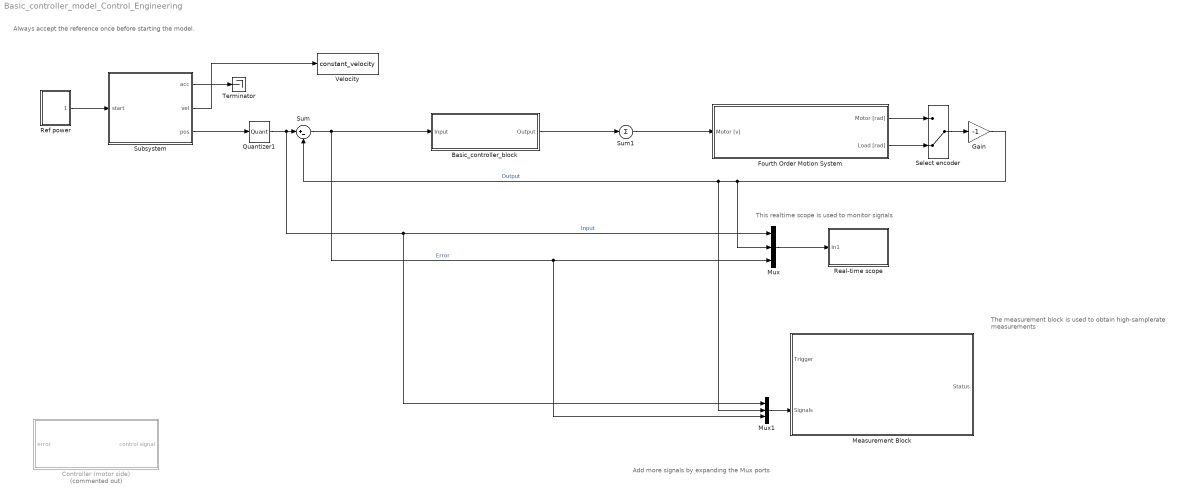
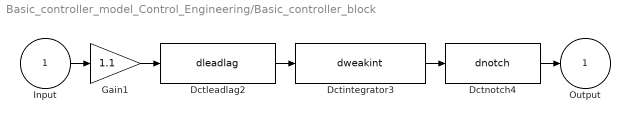
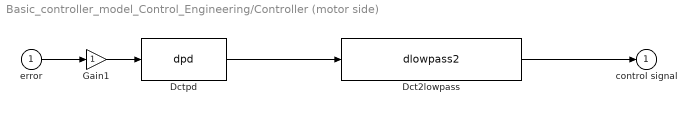
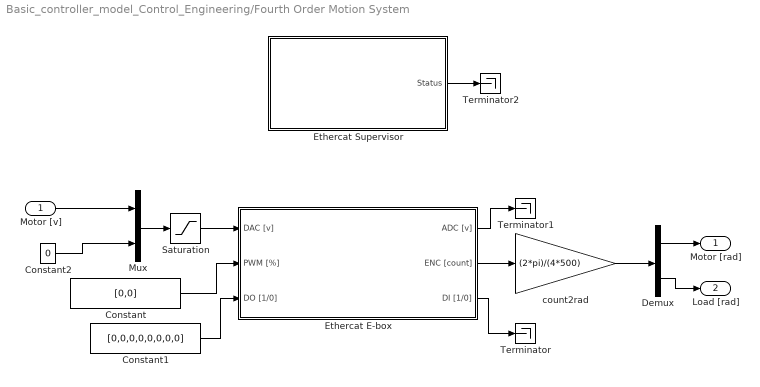
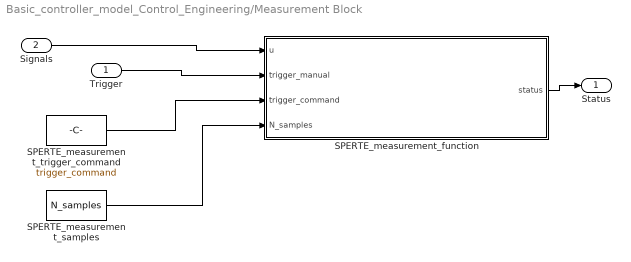
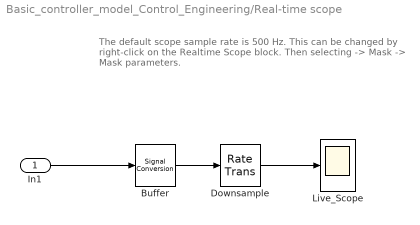
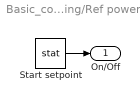
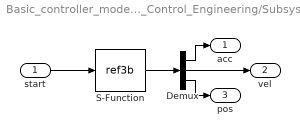
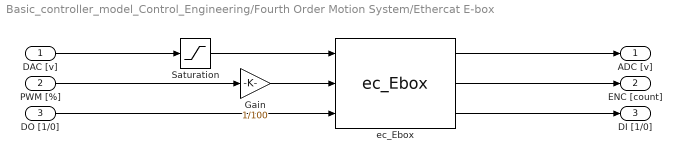
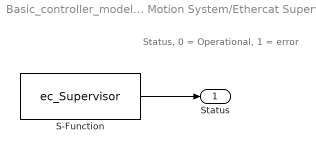
== matlab function Basic_controller_model_Control_Engineering/Measurement Block/SPERTE_measurement_function ==
function status = perform_measurement(u, trigger_manual, trigger_command, triggertype, N_samples)

%% Persistent variables
persistent fileID NF busy NS

% Init parameters
if isempty(NF)
    NF = int16(0);
end
if isempty(NS)
    NS = uint32(0);
end
if isempty(fileID)
    fileID = 0;
end
if isempty(busy)
    busy = uint8(0);
end

%% Check the triggers
if ( (triggertype == 0 && trigger_manual == 1) || (triggertype == 1 && trigger_command == 1) || (triggertype == 2 && (trigger_command == 1 || trigger_manual == 1) ) )
    if busy == 1
        % We are already busy, nothing to do
    else
        % We should start a new one
        fileID = fopen(sprintf('measurement_%d.bin',NF),'w');  
        NF = NF + 1;
        busy = uint8(1);
        NS = uint32(0);
    end
end

% We have started a measurement
if busy == 1
    if NS < N_samples 
        % Here we write the sample, in single precision float
        fwrite(fileID,u,'single');
        NS = NS + uint32(1);
    else
       % We have N samples already, we are done
       fclose(fileID);
       busy = uint8(0);
       NS = uint32(0);
    end
      
end
    % Output state
    status = uint8(busy);
end

/*
 * Basic_controller_model_Control_Engineering.c
 *
 * Academic License - for use in teaching, academic research, and meeting
 * course requirements at degree granting institutions only.  Not for
 * government, commercial, or other organizational use.
 *
 * Code generation for model "Basic_controller_model_Control_Engineering".
 *
 * Model version              : 11.26
 * Simulink Coder version : 23.2 (R2023b) 01-Aug-2023
 * C source code generated on : Tue Apr  2 14:28:56 2024
 *
 * Target selection: ert.tlc
 * Note: GRT includes extra infrastructure and instrumentation for prototyping
 * Embedded hardware selection: ARM Compatible->ARM Cortex
 * Code generation objectives: Unspecified
 * Validation result: Not run
 */

#include "Basic_controller_model_Control_Engineering.h"
#include "Basic_controller_model_Control_Engineering_types.h"
#include "rtwtypes.h"
#include <string.h>
#include <stddef.h>
#include "Basic_controller_model_Control_Engineering_private.h"
#include <stdio.h>
#include <stdlib.h>
#include "rt_nonfinite.h"
#include <math.h>
#include "Basic_controller_model_Control_Engineering_dt.h"

/* Named constants for MATLAB Function: '<S3>/SPERTE_measurement_function' */
#define Basic_controller_mod_CALL_EVENT (-1)

/* Block signals (default storage) */
B_Basic_controller_model_Control_Engineering_T
  Basic_controller_model_Control_Engineering_B;

/* Block states (default storage) */
DW_Basic_controller_model_Control_Engineering_T
  Basic_controller_model_Control_Engineering_DW;

/* Real-time model */
static RT_MODEL_Basic_controller_model_Control_Engineering_T
  Basic_controller_model_Control_Engineering_M_;
RT_MODEL_Basic_controller_model_Control_Engineering_T *const
  Basic_controller_model_Control_Engineering_M =
  &Basic_controller_model_Control_Engineering_M_;

/* Forward declaration for local functions */
static void Basic_controller_emxInit_char_T(emxArray_char_T_Basic_control_T
  **pEmxArray, int32_T numDimensions);
static void Basic__emxEnsureCapacity_char_T(emxArray_char_T_Basic_control_T
  *emxArray, int32_T oldNumel);
static void Basic_controller_emxFree_char_T(emxArray_char_T_Basic_control_T
  **pEmxArray);
static int8_T Basic_controller_model_filedata(void);
static int8_T Basic_controller_model_C_cfopen(const
  emxArray_char_T_Basic_control_T *cfilename, const char_T *cpermission);
static int32_T Basic_controller_model__cfclose(real_T fid);
static void rate_monotonic_scheduler(void);

/*
 * Set which subrates need to run this base step (base rate always runs).
 * This function must be called prior to calling the model step function
 * in order to remember which rates need to run this base step.  The
 * buffering of events allows for overlapping preemption.
 */
void Basic_controller_model_Control_Engineering_SetEventsForThisBaseStep
  (boolean_T *eventFlags)
{
  /* Task runs when its counter is zero, computed via rtmStepTask macro */
  eventFlags[2] = ((boolean_T)rtmStepTask
                   (Basic_controller_model_Control_Engineering_M, 2));
}

/*
 *         This function updates active task flag for each subrate
 *         and rate transition flags for tasks that exchange data.
 *         The function assumes rate-monotonic multitasking scheduler.
 *         The function must be called at model base rate so that
 *         the generated code self-manages all its subrates and rate
 *         transition flags.
 */
static void rate_monotonic_scheduler(void)
{
  /* To ensure a deterministic data transfer between two rates,
   * data is transferred at the priority of a fast task and the frequency
   * of the slow task.  The following flags indicate when the data transfer
   * happens.  That is, a rate interaction flag is set true when both rates
   * will run, and false otherwise.
   */

  /* tid 1 shares data with slower tid rate: 2 */
  if (Basic_controller_model_Control_Engineering_M->Timing.TaskCounters.TID[1] ==
      0) {
    Basic_controller_model_Control_Engineering_M->Timing.RateInteraction.TID1_2 =
      (Basic_controller_model_Control_Engineering_M->Timing.TaskCounters.TID[2] ==
       0);

    /* update PerTaskSampleHits matrix for non-inline sfcn */
    Basic_controller_model_Control_Engineering_M->Timing.perTaskSampleHits[5] =
      Basic_controller_model_Control_Engineering_M->Timing.RateInteraction.TID1_2;
  }

  /* Compute which subrates run during the next base time step.  Subrates
   * are an integer multiple of the base rate counter.  Therefore, the subtask
   * counter is reset when it reaches its limit (zero means run).
   */
  (Basic_controller_model_Control_Engineering_M->Timing.TaskCounters.TID[2])++;
  if ((Basic_controller_model_Control_Engineering_M->Timing.TaskCounters.TID[2])
      > 7) {                           /* Sample time: [0.002s, 0.0s] */
    Basic_controller_model_Control_Engineering_M->Timing.TaskCounters.TID[2] = 0;
  }
}

real_T rt_roundd_snf(real_T u)
{
  real_T y;
  if (fabs(u) < 4.503599627370496E+15) {
    if (u >= 0.5) {
      y = floor(u + 0.5);
    } else if (u > -0.5) {
      y = u * 0.0;
    } else {
      y = ceil(u - 0.5);
    }
  } else {
    y = u;
  }

  return y;
}

static void Basic_controller_emxInit_char_T(emxArray_char_T_Basic_control_T
  **pEmxArray, int32_T numDimensions)
{
  emxArray_char_T_Basic_control_T *emxArray;
  int32_T i;
  *pEmxArray = (emxArray_char_T_Basic_control_T *)malloc(sizeof
    (emxArray_char_T_Basic_control_T));
  emxArray = *pEmxArray;
  emxArray->data = (char_T *)NULL;
  emxArray->numDimensions = numDimensions;
  emxArray->size = (int32_T *)malloc(sizeof(int32_T) * (uint32_T)numDimensions);
  emxArray->allocatedSize = 0;
  emxArray->canFreeData = true;
  for (i = 0; i < numDimensions; i++) {
    emxArray->size[i] = 0;
  }
}

static void Basic__emxEnsureCapacity_char_T(emxArray_char_T_Basic_control_T
  *emxArray, int32_T oldNumel)
{
  int32_T i;
  int32_T newNumel;
  void *newData;
  if (oldNumel < 0) {
    oldNumel = 0;
  }

  newNumel = 1;
  for (i = 0; i < emxArray->numDimensions; i++) {
    newNumel *= emxArray->size[i];
  }

  if (newNumel > emxArray->allocatedSize) {
    i = emxArray->allocatedSize;
    if (i < 16) {
      i = 16;
    }

    while (i < newNumel) {
      if (i > 1073741823) {
        i = MAX_int32_T;
      } else {
        i <<= 1;
      }
    }

    newData = malloc((uint32_T)i * sizeof(char_T));
    if (emxArray->data != NULL) {
      memcpy(newData, emxArray->data, sizeof(char_T) * (uint32_T)oldNumel);
      if (emxArray->canFreeData) {
        free(emxArray->data);
      }
    }

    emxArray->data = (char_T *)newData;
    emxArray->allocatedSize = i;
    emxArray->canFreeData = true;
  }
}

static void Basic_controller_emxFree_char_T(emxArray_char_T_Basic_control_T
  **pEmxArray)
{
  if (*pEmxArray != (emxArray_char_T_Basic_control_T *)NULL) {
    if (((*pEmxArray)->data != (char_T *)NULL) && (*pEmxArray)->canFreeData) {
      free((*pEmxArray)->data);
    }

    free((*pEmxArray)->size);
    free(*pEmxArray);
    *pEmxArray = (emxArray_char_T_Basic_control_T *)NULL;
  }
}

/* Function for MATLAB Function: '<S3>/SPERTE_measurement_function' */
static int8_T Basic_controller_model_filedata(void)
{
  int32_T k;
  int8_T f;
  boolean_T exitg1;
  f = 0;
  k = 1;
  exitg1 = false;
  while ((!exitg1) && (k - 1 < 20)) {
    if (Basic_controller_model_Control_Engineering_DW.eml_openfiles[(int8_T)k -
        1] == NULL) {
      f = (int8_T)k;
      exitg1 = true;
    } else {
      k++;
    }
  }

  return f;
}

/* Function for MATLAB Function: '<S3>/SPERTE_measurement_function' */
static int8_T Basic_controller_model_C_cfopen(const
  emxArray_char_T_Basic_control_T *cfilename, const char_T *cpermission)
{
  FILE *filestar;
  emxArray_char_T_Basic_control_T *ccfilename;
  int32_T loop_ub;
  int8_T fileid;
  int8_T j;
  fileid = -1;
  j = Basic_controller_model_filedata();
  if (j >= 1) {
    Basic_controller_emxInit_char_T(&ccfilename, 2);
    loop_ub = ccfilename->size[0] * ccfilename->size[1];
    ccfilename->size[0] = 1;
    ccfilename->size[1] = cfilename->size[1] + 1;
    Basic__emxEnsureCapacity_char_T(ccfilename, loop_ub);
    loop_ub = cfilename->size[1];
    if (loop_ub - 1 >= 0) {
      memcpy(&ccfilename->data[0], &cfilename->data[0], (uint32_T)loop_ub *
             sizeof(char_T));
    }

    ccfilename->data[cfilename->size[1]] = '\x00';
    filestar = fopen(&ccfilename->data[0], cpermission);
    Basic_controller_emxFree_char_T(&ccfilename);
    if (filestar != NULL) {
      Basic_controller_model_Control_Engineering_DW.eml_openfiles[j - 1] =
        filestar;
      Basic_controller_model_Control_Engineering_DW.eml_autoflush[j - 1] = true;
      loop_ub = j + 2;
      if (j + 2 > 127) {
        loop_ub = 127;
      }

      fileid = (int8_T)loop_ub;
    }
  }

  return fileid;
}

/* Function for MATLAB Function: '<S3>/SPERTE_measurement_function' */
static int32_T Basic_controller_model__cfclose(real_T fid)
{
  FILE *f;
  int32_T cst;
  int32_T st;
  int8_T b_fileid;
  int8_T fileid;
  st = -1;
  fileid = (int8_T)fid;
  if (((int8_T)fid < 0) || (fid != (int8_T)fid)) {
    fileid = -1;
  }

  b_fileid = fileid;
  if (fileid < 0) {
    b_fileid = -1;
  }

  if (b_fileid >= 3) {
    f = Basic_controller_model_Control_Engineering_DW.eml_openfiles[b_fileid - 3];
  } else if (b_fileid == 0) {
    f = stdin;
  } else if (b_fileid == 1) {
    f = stdout;
  } else if (b_fileid == 2) {
    f = stderr;
  } else {
    f = NULL;
  }

  if ((f != NULL) && (fileid >= 3)) {
    cst = fclose(f);
    if (cst == 0) {
      st = 0;
      Basic_controller_model_Control_Engineering_DW.eml_openfiles[fileid - 3] =
        NULL;
      Basic_controller_model_Control_Engineering_DW.eml_autoflush[fileid - 3] =
        true;
    }
  }

  return st;
}

/* Model step function for TID0 */
void Basic_controller_model_Control_Engineering_step0(void) /* Sample time: [0.0s, 0.0s] */
{
  FILE *f;
  emxArray_char_T_Basic_control_T *str;
  emxArray_char_T_Basic_control_T *str_0;
  int8_T b_fileid;
  boolean_T autoflush;

  {                                    /* Sample time: [0.0s, 0.0s] */
    rate_monotonic_scheduler();
  }

  /* Constant: '<S5>/Start setpoint' */
  Basic_controller_model_Control_Engineering_B.Startsetpoint =
    Basic_controller_model_Control_Engineering_P.Refpower_stat;

  /* S-Function (ref3b): '<S6>/S-Function' */

  /* Level2 S-Function Block: '<S6>/S-Function' (ref3b) */
  {
    SimStruct *rts =
      Basic_controller_model_Control_Engineering_M->childSfunctions[0];
    sfcnOutputs(rts,0);
  }

  /* S-Function (ec_Supervisor): '<S8>/S-Function' */

  /* Level2 S-Function Block: '<S8>/S-Function' (ec_Supervisor) */
  {
    SimStruct *rts =
      Basic_controller_model_Control_Engineering_M->childSfunctions[1];
    sfcnOutputs(rts,0);
  }

  /* S-Function (ec_Ebox): '<S7>/ec_Ebox' */

  /* Level2 S-Function Block: '<S7>/ec_Ebox' (ec_Ebox) */
  {
    SimStruct *rts =
      Basic_controller_model_Control_Engineering_M->childSfunctions[2];
    sfcnOutputs(rts,0);
  }

  /* Quantizer: '<Root>/Quantizer1' */
  Basic_controller_model_Control_Engineering_B.Input = rt_roundd_snf
    (Basic_controller_model_Control_Engineering_B.SFunction[2] /
     Basic_controller_model_Control_Engineering_P.Quantizer1_Interval) *
    Basic_controller_model_Control_Engineering_P.Quantizer1_Interval;

  /* ManualSwitch: '<Root>/Select encoder' incorporates:
   *  Gain: '<S2>/count2rad'
   */
  if (Basic_controller_model_Control_Engineering_P.Selectencoder_CurrentSetting ==
      1) {
    Basic_controller_model_Control_Engineering_B.Error =
      Basic_controller_model_Control_Engineering_P.count2rad_Gain *
      Basic_controller_model_Control_Engineering_B.ec_Ebox_o2[0];
  } else {
    Basic_controller_model_Control_Engineering_B.Error =
      Basic_controller_model_Control_Engineering_P.count2rad_Gain *
      Basic_controller_model_Control_Engineering_B.ec_Ebox_o2[1];
  }

  /* Gain: '<Root>/Gain' incorporates:
   *  ManualSwitch: '<Root>/Select encoder'
   */
  Basic_controller_model_Control_Engineering_B.Output =
    Basic_controller_model_Control_Engineering_P.Gain_Gain *
    Basic_controller_model_Control_Engineering_B.Error;

  /* Sum: '<Root>/Sum' */
  Basic_controller_model_Control_Engineering_B.Error =
    Basic_controller_model_Control_Engineering_B.Input -
    Basic_controller_model_Control_Engineering_B.Output;

  /* MATLAB Function: '<S3>/SPERTE_measurement_function' incorporates:
   *  Constant: '<S3>/SPERTE_measurement_samples'
   *  Constant: '<S3>/SPERTE_measurement_trigger_command'
   *  SignalConversion generated from: '<S9>/ SFunction '
   */
  Basic_controller_model_Control_Engineering_DW.sfEvent =
    Basic_controller_mod_CALL_EVENT;
  if ((((Basic_controller_model_Control_Engineering_P.MeasurementBlock_triggertype
         == 1) &&
        (Basic_controller_model_Control_Engineering_P.MeasurementBlock_trigger_comman
         == 1)) ||
       ((Basic_controller_model_Control_Engineering_P.MeasurementBlock_triggertype
         == 2) &&
        (Basic_controller_model_Control_Engineering_P.MeasurementBlock_trigger_comman
         == 1))) && (Basic_controller_model_Control_Engineering_DW.busy != 1)) {
    Basic_controller_model_Control_Engineering_B.nbytes = (int32_T)snprintf(NULL,
      0, "measurement_%d.bin", Basic_controller_model_Control_Engineering_DW.NF)
      + 1;
    Basic_controller_emxInit_char_T(&str, 2);
    Basic_controller_model_Control_Engineering_B.i = str->size[0] * str->size[1];
    str->size[0] = 1;
    str->size[1] = Basic_controller_model_Control_Engineering_B.nbytes;
    Basic__emxEnsureCapacity_char_T(str,
      Basic_controller_model_Control_Engineering_B.i);
    snprintf(&str->data[0], (size_t)
             Basic_controller_model_Control_Engineering_B.nbytes,
             "measurement_%d.bin",
             Basic_controller_model_Control_Engineering_DW.NF);
    if (Basic_controller_model_Control_Engineering_B.nbytes - 1 < 1) {
      Basic_controller_model_Control_Engineering_B.nbytes = -1;
    } else {
      Basic_controller_model_Control_Engineering_B.nbytes -= 2;
    }

    Basic_controller_emxInit_char_T(&str_0, 2);
    Basic_controller_model_Control_Engineering_B.i = str_0->size[0] *
      str_0->size[1];
    str_0->size[0] = 1;
    str_0->size[1] = Basic_controller_model_Control_Engineering_B.nbytes + 1;
    Basic__emxEnsureCapacity_char_T(str_0,
      Basic_controller_model_Control_Engineering_B.i);
    if (Basic_controller_model_Control_Engineering_B.nbytes >= 0) {
      memcpy(&str_0->data[0], &str->data[0], (uint32_T)
             (Basic_controller_model_Control_Engineering_B.nbytes + 1) * sizeof
             (char_T));
    }

    Basic_controller_emxFree_char_T(&str);
    b_fileid = Basic_controller_model_C_cfopen(str_0, "wb");
    Basic_controller_emxFree_char_T(&str_0);
    Basic_controller_model_Control_Engineering_DW.fileID = b_fileid;
    Basic_controller_model_Control_Engineering_B.nbytes =
      Basic_controller_model_Control_Engineering_DW.NF + 1;
    if (Basic_controller_model_Control_Engineering_DW.NF + 1 > 32767) {
      Basic_controller_model_Control_Engineering_B.nbytes = 32767;
    }

    Basic_controller_model_Control_Engineering_DW.NF = (int16_T)
      Basic_controller_model_Control_Engineering_B.nbytes;
    Basic_controller_model_Control_Engineering_DW.busy = 1U;
    Basic_controller_model_Control_Engineering_DW.NS = 0U;
  }

  if (Basic_controller_model_Control_Engineering_DW.busy == 1) {
    if (Basic_controller_model_Control_Engineering_DW.NS <
        Basic_controller_model_Control_Engineering_P.MeasurementBlock_N_samples)
    {
      b_fileid = (int8_T)Basic_controller_model_Control_Engineering_DW.fileID;
      if (((int8_T)Basic_controller_model_Control_Engineering_DW.fileID < 0) ||
          (Basic_controller_model_Control_Engineering_DW.fileID != (int8_T)
           Basic_controller_model_Control_Engineering_DW.fileID)) {
        b_fileid = -1;
      }

      if (b_fileid >= 3) {
        autoflush =
          Basic_controller_model_Control_Engineering_DW.eml_autoflush[b_fileid -
          3];
        f = Basic_controller_model_Control_Engineering_DW.eml_openfiles[b_fileid
          - 3];
      } else if (b_fileid == 0) {
        f = stdin;
        autoflush = true;
      } else if (b_fileid == 1) {
        f = stdout;
        autoflush = true;
      } else if (b_fileid == 2) {
        f = stderr;
        autoflush = true;
      } else {
        f = NULL;
        autoflush = true;
      }

      if (!(Basic_controller_model_Control_Engineering_DW.fileID != 0.0)) {
        f = NULL;
      }

      if (!(f == NULL)) {
        Basic_controller_model_Control_Engineering_B.xout[0] = (real32_T)
          Basic_controller_model_Control_Engineering_B.Input;
        Basic_controller_model_Control_Engineering_B.xout[1] = (real32_T)
          Basic_controller_model_Control_Engineering_B.Output;
        Basic_controller_model_Control_Engineering_B.xout[2] = (real32_T)
          Basic_controller_model_Control_Engineering_B.Error;
        Basic_controller_model_Control_Engineering_B.bytesOutSizet = fwrite
          (&Basic_controller_model_Control_Engineering_B.xout[0], sizeof
           (real32_T), (size_t)3, f);
        if (((real_T)Basic_controller_model_Control_Engineering_B.bytesOutSizet >
             0.0) && autoflush) {
          fflush(f);
        }
      }

      Basic_controller_model_Control_Engineering_B.qY =
        Basic_controller_model_Control_Engineering_DW.NS + 1U;
      if (Basic_controller_model_Control_Engineering_DW.NS + 1U <
          Basic_controller_model_Control_Engineering_DW.NS) {
        Basic_controller_model_Control_Engineering_B.qY = MAX_uint32_T;
      }

      Basic_controller_model_Control_Engineering_DW.NS =
        Basic_controller_model_Control_Engineering_B.qY;
    } else {
      Basic_controller_model__cfclose
        (Basic_controller_model_Control_Engineering_DW.fileID);
      Basic_controller_model_Control_Engineering_DW.busy = 0U;
      Basic_controller_model_Control_Engineering_DW.NS = 0U;
    }
  }

  /* End of MATLAB Function: '<S3>/SPERTE_measurement_function' */

  /* SignalConversion: '<S4>/Buffer' */
  Basic_controller_model_Control_Engineering_B.Buffer[0] =
    Basic_controller_model_Control_Engineering_B.Input;
  Basic_controller_model_Control_Engineering_B.Buffer[1] =
    Basic_controller_model_Control_Engineering_B.Output;
  Basic_controller_model_Control_Engineering_B.Buffer[2] =
    Basic_controller_model_Control_Engineering_B.Error;

  /* RateTransition: '<S4>/Downsample' */
  if (Basic_controller_model_Control_Engineering_M->Timing.RateInteraction.TID1_2)
  {
    Basic_controller_model_Control_Engineering_DW.Downsample_Buffer[0] =
      Basic_controller_model_Control_Engineering_B.Buffer[0];
    Basic_controller_model_Control_Engineering_DW.Downsample_Buffer[1] =
      Basic_controller_model_Control_Engineering_B.Buffer[1];
    Basic_controller_model_Control_Engineering_DW.Downsample_Buffer[2] =
      Basic_controller_model_Control_Engineering_B.Buffer[2];
  }

  /* End of RateTransition: '<S4>/Downsample' */

  /* Gain: '<S1>/Gain1' */
  Basic_controller_model_Control_Engineering_B.Gain1 =
    Basic_controller_model_Control_Engineering_P.Gain1_Gain *
    Basic_controller_model_Control_Engineering_B.Error;

  /* S-Function (dleadlag): '<S1>/Dctleadlag2' */

  /* Level2 S-Function Block: '<S1>/Dctleadlag2' (dleadlag) */
  {
    SimStruct *rts =
      Basic_controller_model_Control_Engineering_M->childSfunctions[3];
    sfcnOutputs(rts,0);
  }

  /* S-Function (dweakint): '<S1>/Dctintegrator3' */

  /* Level2 S-Function Block: '<S1>/Dctintegrator3' (dweakint) */
  {
    SimStruct *rts =
      Basic_controller_model_Control_Engineering_M->childSfunctions[4];
    sfcnOutputs(rts,0);
  }

  /* S-Function (dnotch): '<S1>/Dctnotch4' */

  /* Level2 S-Function Block: '<S1>/Dctnotch4' (dnotch) */
  {
    SimStruct *rts =
      Basic_controller_model_Control_Engineering_M->childSfunctions[5];
    sfcnOutputs(rts,0);
  }

  /* Saturate: '<S2>/Saturation' incorporates:
   *  Sum: '<Root>/Sum1'
   */
  if (Basic_controller_model_Control_Engineering_B.Dctnotch4 >
      Basic_controller_model_Control_Engineering_P.Saturation_UpperSat) {
    Basic_controller_model_Control_Engineering_B.Input =
      Basic_controller_model_Control_Engineering_P.Saturation_UpperSat;
  } else if (Basic_controller_model_Control_Engineering_B.Dctnotch4 <
             Basic_controller_model_Control_Engineering_P.Saturation_LowerSat) {
    Basic_controller_model_Control_Engineering_B.Input =
      Basic_controller_model_Control_Engineering_P.Saturation_LowerSat;
  } else {
    Basic_controller_model_Control_Engineering_B.Input =
      Basic_controller_model_Control_Engineering_B.Dctnotch4;
  }

  /* Saturate: '<S7>/Saturation' */
  if (Basic_controller_model_Control_Engineering_B.Input >
      Basic_controller_model_Control_Engineering_P.Saturation_UpperSat_d) {
    /* Saturate: '<S7>/Saturation' */
    Basic_controller_model_Control_Engineering_B.Saturation[0] =
      Basic_controller_model_Control_Engineering_P.Saturation_UpperSat_d;
  } else if (Basic_controller_model_Control_Engineering_B.Input <
             Basic_controller_model_Control_Engineering_P.Saturation_LowerSat_e)
  {
    /* Saturate: '<S7>/Saturation' */
    Basic_controller_model_Control_Engineering_B.Saturation[0] =
      Basic_controller_model_Control_Engineering_P.Saturation_LowerSat_e;
  } else {
    /* Saturate: '<S7>/Saturation' */
    Basic_controller_model_Control_Engineering_B.Saturation[0] =
      Basic_controller_model_Control_Engineering_B.Input;
  }

  /* Saturate: '<S2>/Saturation' incorporates:
   *  Constant: '<S2>/Constant2'
   */
  if (Basic_controller_model_Control_Engineering_P.Constant2_Value >
      Basic_controller_model_Control_Engineering_P.Saturation_UpperSat) {
    Basic_controller_model_Control_Engineering_B.Input =
      Basic_controller_model_Control_Engineering_P.Saturation_UpperSat;
  } else if (Basic_controller_model_Control_Engineering_P.Constant2_Value <
             Basic_controller_model_Control_Engineering_P.Saturation_LowerSat) {
    Basic_controller_model_Control_Engineering_B.Input =
      Basic_controller_model_Control_Engineering_P.Saturation_LowerSat;
  } else {
    Basic_controller_model_Control_Engineering_B.Input =
      Basic_controller_model_Control_Engineering_P.Constant2_Value;
  }

  /* Saturate: '<S7>/Saturation' */
  if (Basic_controller_model_Control_Engineering_B.Input >
      Basic_controller_model_Control_Engineering_P.Saturation_UpperSat_d) {
    /* Saturate: '<S7>/Saturation' */
    Basic_controller_model_Control_Engineering_B.Saturation[1] =
      Basic_controller_model_Control_Engineering_P.Saturation_UpperSat_d;
  } else if (Basic_controller_model_Control_Engineering_B.Input <
             Basic_controller_model_Control_Engineering_P.Saturation_LowerSat_e)
  {
    /* Saturate: '<S7>/Saturation' */
    Basic_controller_model_Control_Engineering_B.Saturation[1] =
      Basic_controller_model_Control_Engineering_P.Saturation_LowerSat_e;
  } else {
    /* Saturate: '<S7>/Saturation' */
    Basic_controller_model_Control_Engineering_B.Saturation[1] =
      Basic_controller_model_Control_Engineering_B.Input;
  }

  /* Constant: '<S2>/Constant1' */
  memcpy(&Basic_controller_model_Control_Engineering_B.Constant1[0],
         &Basic_controller_model_Control_Engineering_P.Constant1_Value[0],
         sizeof(real_T) << 3U);

  /* Gain: '<S7>/Gain' incorporates:
   *  Constant: '<S2>/Constant'
   */
  Basic_controller_model_Control_Engineering_B.Gain[0] =
    Basic_controller_model_Control_Engineering_P.Gain_Gain_g *
    Basic_controller_model_Control_Engineering_P.Constant_Value[0];
  Basic_controller_model_Control_Engineering_B.Gain[1] =
    Basic_controller_model_Control_Engineering_P.Gain_Gain_g *
    Basic_controller_model_Control_Engineering_P.Constant_Value[1];

  /* External mode */
  rtExtModeUploadCheckTrigger(3);
  rtExtModeUpload(1, (real_T)
                  Basic_controller_model_Control_Engineering_M->Timing.t[0]);

  /* signal main to stop simulation */
  {                                    /* Sample time: [0.0s, 0.0s] */
    if ((rtmGetTFinal(Basic_controller_model_Control_Engineering_M)!=-1) &&
        !((rtmGetTFinal(Basic_controller_model_Control_Engineering_M)-
           Basic_controller_model_Control_Engineering_M->Timing.t[0]) >
          Basic_controller_model_Control_Engineering_M->Timing.t[0] *
          (DBL_EPSILON))) {
      rtmSetErrorStatus(Basic_controller_model_Control_Engineering_M,
                        "Simulation finished");
    }

    if (rtmGetStopRequested(Basic_controller_model_Control_Engineering_M)) {
      rtmSetErrorStatus(Basic_controller_model_Control_Engineering_M,
                        "Simulation finished");
    }
  }

  /* Update absolute time */
  /* The "clockTick0" counts the number of times the code of this task has
   * been executed. The absolute time is the multiplication of "clockTick0"
   * and "Timing.stepSize0". Size of "clockTick0" ensures timer will not
   * overflow during the application lifespan selected.
   * Timer of this task consists of two 32 bit unsigned integers.
   * The two integers represent the low bits Timing.clockTick0 and the high bits
   * Timing.clockTickH0. When the low bit overflows to 0, the high bits increment.
   */
  if (!(++Basic_controller_model_Control_Engineering_M->Timing.clockTick0)) {
    ++Basic_controller_model_Control_Engineering_M->Timing.clockTickH0;
  }

  Basic_controller_model_Control_Engineering_M->Timing.t[0] =
    Basic_controller_model_Control_Engineering_M->Timing.clockTick0 *
    Basic_controller_model_Control_Engineering_M->Timing.stepSize0 +
    Basic_controller_model_Control_Engineering_M->Timing.clockTickH0 *
    Basic_controller_model_Control_Engineering_M->Timing.stepSize0 *
    4294967296.0;

  /* Update absolute time */
  /* The "clockTick1" counts the number of times the code of this task has
   * been executed. The absolute time is the multiplication of "clockTick1"
   * and "Timing.stepSize1". Size of "clockTick1" ensures timer will not
   * overflow during the application lifespan selected.
   * Timer of this task consists of two 32 bit unsigned integers.
   * The two integers represent the low bits Timing.clockTick1 and the high bits
   * Timing.clockTickH1. When the low bit overflows to 0, the high bits increment.
   */
  if (!(++Basic_controller_model_Control_Engineering_M->Timing.clockTick1)) {
    ++Basic_controller_model_Control_Engineering_M->Timing.clockTickH1;
  }

  Basic_controller_model_Control_Engineering_M->Timing.t[1] =
    Basic_controller_model_Control_Engineering_M->Timing.clockTick1 *
    Basic_controller_model_Control_Engineering_M->Timing.stepSize1 +
    Basic_controller_model_Control_Engineering_M->Timing.clockTickH1 *
    Basic_controller_model_Control_Engineering_M->Timing.stepSize1 *
    4294967296.0;
}

/* Model step function for TID2 */
void Basic_controller_model_Control_Engineering_step2(void) /* Sample time: [0.002s, 0.0s] */
{
  /* RateTransition: '<S4>/Downsample' */
  Basic_controller_model_Control_Engineering_B.Downsample[0] =
    Basic_controller_model_Control_Engineering_DW.Downsample_Buffer[0];
  Basic_controller_model_Control_Engineering_B.Downsample[1] =
    Basic_controller_model_Control_Engineering_DW.Downsample_Buffer[1];
  Basic_controller_model_Control_Engineering_B.Downsample[2] =
    Basic_controller_model_Control_Engineering_DW.Downsample_Buffer[2];
  rtExtModeUpload(2, (real_T)
                  (((Basic_controller_model_Control_Engineering_M->Timing.clockTick2
                     +Basic_controller_model_Control_Engineering_M->Timing.clockTickH2*
                     4294967296.0)) * 0.002));

  /* Update absolute time */
  /* The "clockTick2" counts the number of times the code of this task has
   * been executed. The resolution of this integer timer is 0.002, which is the step size
   * of the task. Size of "clockTick2" ensures timer will not overflow during the
   * application lifespan selected.
   * Timer of this task consists of two 32 bit unsigned integers.
   * The two integers represent the low bits Timing.clockTick2 and the high bits
   * Timing.clockTickH2. When the low bit overflows to 0, the high bits increment.
   */
  Basic_controller_model_Control_Engineering_M->Timing.clockTick2++;
  if (!Basic_controller_model_Control_Engineering_M->Timing.clockTick2) {
    Basic_controller_model_Control_Engineering_M->Timing.clockTickH2++;
  }
}

/* Use this function only if you need to maintain compatibility with an existing static main program. */
void Basic_controller_model_Control_Engineering_step(int_T tid)
{
  switch (tid) {
   case 0 :
    Basic_controller_model_Control_Engineering_step0();
    break;

   case 2 :
    Basic_controller_model_Control_Engineering_step2();
    break;

   default :
    /* do nothing */
    break;
  }
}
